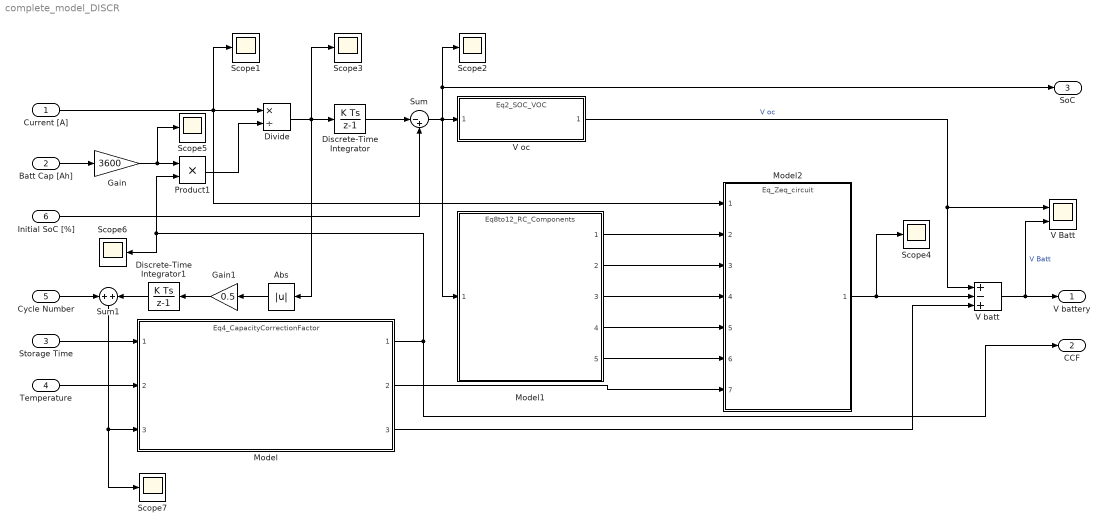
/*
 * complete_model_DISCR.c
 *
 * Academic License - for use in teaching, academic research, and meeting
 * course requirements at degree granting institutions only.  Not for
 * government, commercial, or other organizational use.
 *
 * Code generation for model "complete_model_DISCR".
 *
 * Model version              : 2.36
 * Simulink Coder version : 9.8 (R2022b) 13-May-2022
 * C source code generated on : Tue Sep 26 17:16:03 2023
 *
 * Target selection: grt.tlc
 * Note: GRT includes extra infrastructure and instrumentation for prototyping
 * Embedded hardware selection: Intel->x86-64 (Windows64)
 * Code generation objective: Debugging
 * Validation result: Not run
 */

#include "complete_model_DISCR.h"
#include <math.h>
#include <string.h>
#include "complete_model_DISCR_private.h"
#include "Eq4_CapacityCorrectionFactor.h"
#include "Eq8to12_RC_Components.h"
#include "Eq_Zeq_circuit.h"
#include "Eq2_SOC_VOC.h"
#include "rt_nonfinite.h"

rtTimingBridge complete_model_DISCR_TimingBrdg;

/* Block signals (default storage) */
B_complete_model_DISCR_T complete_model_DISCR_B;

/* Block states (default storage) */
DW_complete_model_DISCR_T complete_model_DISCR_DW;

/* External inputs (root inport signals with default storage) */
ExtU_complete_model_DISCR_T complete_model_DISCR_U;

/* External outputs (root outports fed by signals with default storage) */
ExtY_complete_model_DISCR_T complete_model_DISCR_Y;

/* Real-time model */
static RT_MODEL_complete_model_DISCR_T complete_model_DISCR_M_;
RT_MODEL_complete_model_DISCR_T *const complete_model_DISCR_M =
  &complete_model_DISCR_M_;

/* Model step function */
void complete_model_DISCR_step(void)
{
  /* DiscreteIntegrator: '<Root>/Discrete-Time Integrator' */
  complete_model_DISCR_B.DiscreteTimeIntegrator =
    complete_model_DISCR_DW.DiscreteTimeIntegrator_DSTATE;

  /* Outport: '<Root>/SoC' incorporates:
   *  Inport: '<Root>/Initial SoC [%]'
   *  Sum: '<Root>/Sum'
   */
  complete_model_DISCR_Y.SoC = complete_model_DISCR_U.InitialSoC -
    complete_model_DISCR_B.DiscreteTimeIntegrator;

  /* ModelReference: '<Root>/V oc' incorporates:
   *  Outport: '<Root>/SoC'
   */
  Eq2_SOC_VOC(&complete_model_DISCR_Y.SoC, &complete_model_DISCR_B.Voc,
              &(complete_model_DISCR_DW.Voc_InstanceData.rtb));

  /* ModelReference: '<Root>/Model1' incorporates:
   *  Outport: '<Root>/SoC'
   */
  Eq8to12_RC_Components(&complete_model_DISCR_Y.SoC,
                        &complete_model_DISCR_B.Model1_o1,
                        &complete_model_DISCR_B.Model1_o2,
                        &complete_model_DISCR_B.Model1_o3,
                        &complete_model_DISCR_B.Model1_o4,
                        &complete_model_DISCR_B.Model1_o5,
                        &(complete_model_DISCR_DW.Model1_InstanceData.rtb));

  /* DiscreteIntegrator: '<Root>/Discrete-Time Integrator1' */
  complete_model_DISCR_B.DiscreteTimeIntegrator1 =
    complete_model_DISCR_DW.DiscreteTimeIntegrator1_DSTATE;

  /* Sum: '<Root>/Sum1' incorporates:
   *  Inport: '<Root>/Cycle Number'
   */
  complete_model_DISCR_B.Sum1 = complete_model_DISCR_U.CycleNumber +
    complete_model_DISCR_B.DiscreteTimeIntegrator1;

  /* ModelReference: '<Root>/Model' incorporates:
   *  Inport: '<Root>/Storage Time'
   *  Inport: '<Root>/Temperature'
   *  Outport: '<Root>/CCF'
   */
  Eq4_CapacityCorrectionFactor(&complete_model_DISCR_U.StorageTime,
    &complete_model_DISCR_U.Temperature, &complete_model_DISCR_B.Sum1,
    &complete_model_DISCR_Y.CCF, &complete_model_DISCR_B.Model_o2,
    &complete_model_DISCR_B.Model_o3,
    &(complete_model_DISCR_DW.Model_InstanceData.rtb),
    &(complete_model_DISCR_DW.Model_InstanceData.rtdw));

  /* ModelReference: '<Root>/Model2' incorporates:
   *  Inport: '<Root>/Current [A]'
   */
  Eq_Zeq_circuit(&(complete_model_DISCR_DW.Model2_InstanceData.rtm),
                 &complete_model_DISCR_U.CurrentA,
                 &complete_model_DISCR_B.Model1_o1,
                 &complete_model_DISCR_B.Model1_o2,
                 &complete_model_DISCR_B.Model1_o3,
                 &complete_model_DISCR_B.Model1_o4,
                 &complete_model_DISCR_B.Model1_o5,
                 &complete_model_DISCR_B.Model_o2,
                 &complete_model_DISCR_B.Model2,
                 &(complete_model_DISCR_DW.Model2_InstanceData.rtb),
                 &(complete_model_DISCR_DW.Model2_InstanceData.rtdw));

  /* Outport: '<Root>/V battery' incorporates:
   *  Sum: '<Root>/V batt'
   */
  complete_model_DISCR_Y.Vbattery = (complete_model_DISCR_B.Voc -
    complete_model_DISCR_B.Model2) + complete_model_DISCR_B.Model_o3;

  /* Gain: '<Root>/Gain' incorporates:
   *  Inport: '<Root>/Batt Cap [Ah]'
   */
  complete_model_DISCR_B.Gain = complete_model_DISCR_P.Gain_Gain *
    complete_model_DISCR_U.BattCapAh;

  /* Product: '<Root>/Product1' incorporates:
   *  Outport: '<Root>/CCF'
   */
  complete_model_DISCR_B.Product1 = complete_model_DISCR_B.Gain *
    complete_model_DISCR_Y.CCF;

  /* Product: '<Root>/Divide' incorporates:
   *  Inport: '<Root>/Current [A]'
   */
  complete_model_DISCR_B.Divide = complete_model_DISCR_U.CurrentA /
    complete_model_DISCR_B.Product1;

  /* Abs: '<Root>/Abs' */
  complete_model_DISCR_B.Abs = fabs(complete_model_DISCR_B.Divide);

  /* Gain: '<Root>/Gain1' */
  complete_model_DISCR_B.Gain1 = complete_model_DISCR_P.Gain1_Gain *
    complete_model_DISCR_B.Abs;

  /* Update for DiscreteIntegrator: '<Root>/Discrete-Time Integrator' */
  complete_model_DISCR_DW.DiscreteTimeIntegrator_DSTATE +=
    complete_model_DISCR_P.DiscreteTimeIntegrator_gainval *
    complete_model_DISCR_B.Divide;

  /* Update for DiscreteIntegrator: '<Root>/Discrete-Time Integrator1' */
  complete_model_DISCR_DW.DiscreteTimeIntegrator1_DSTATE +=
    complete_model_DISCR_P.DiscreteTimeIntegrator1_gainval *
    complete_model_DISCR_B.Gain1;

  /* Matfile logging */
  rt_UpdateTXYLogVars(complete_model_DISCR_M->rtwLogInfo,
                      (&complete_model_DISCR_M->Timing.taskTime0));

  /* signal main to stop simulation */
  {                                    /* Sample time: [1.0s, 0.0s] */
    if ((rtmGetTFinal(complete_model_DISCR_M)!=-1) &&
        !((rtmGetTFinal(complete_model_DISCR_M)-
           complete_model_DISCR_M->Timing.taskTime0) >
          complete_model_DISCR_M->Timing.taskTime0 * (DBL_EPSILON))) {
      rtmSetErrorStatus(complete_model_DISCR_M, "Simulation finished");
    }
  }

  /* Update absolute time for base rate */
  /* The "clockTick0" counts the number of times the code of this task has
   * been executed. The absolute time is the multiplication of "clockTick0"
   * and "Timing.stepSize0". Size of "clockTick0" ensures timer will not
   * overflow during the application lifespan selected.
   * Timer of this task consists of two 32 bit unsigned integers.
   * The two integers represent the low bits Timing.clockTick0 and the high bits
   * Timing.clockTickH0. When the low bit overflows to 0, the high bits increment.
   */
  if (!(++complete_model_DISCR_M->Timing.clockTick0)) {
    ++complete_model_DISCR_M->Timing.clockTickH0;
  }

  complete_model_DISCR_M->Timing.taskTime0 =
    complete_model_DISCR_M->Timing.clockTick0 *
    complete_model_DISCR_M->Timing.stepSize0 +
    complete_model_DISCR_M->Timing.clockTickH0 *
    complete_model_DISCR_M->Timing.stepSize0 * 4294967296.0;
}
